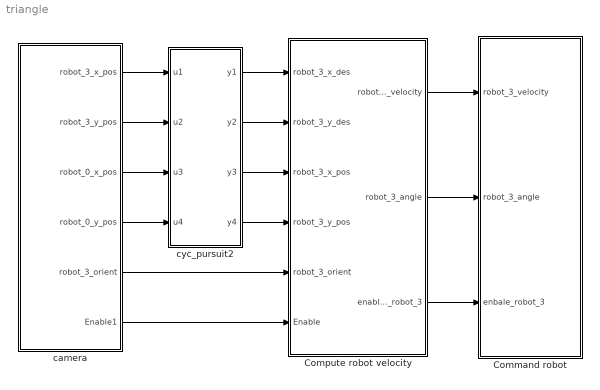
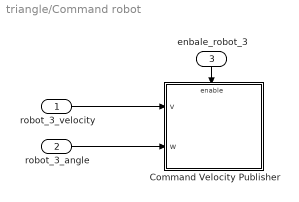
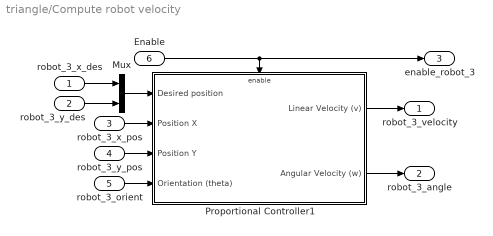
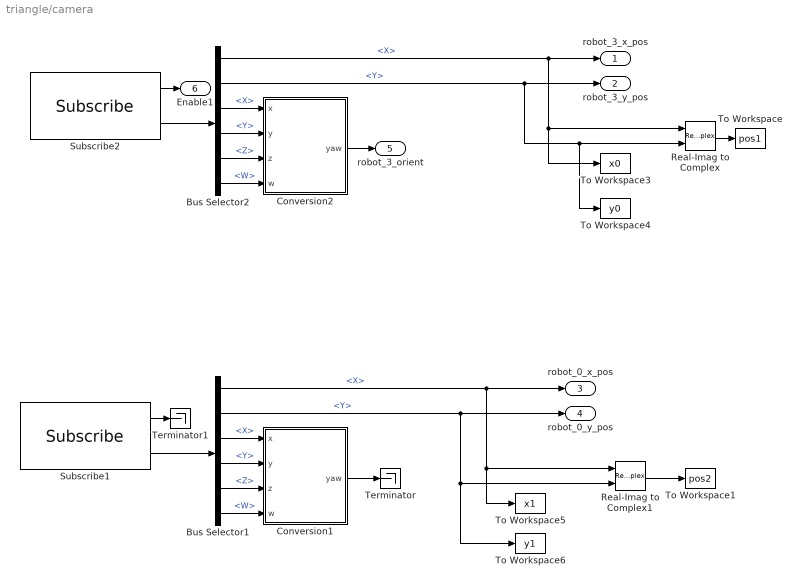
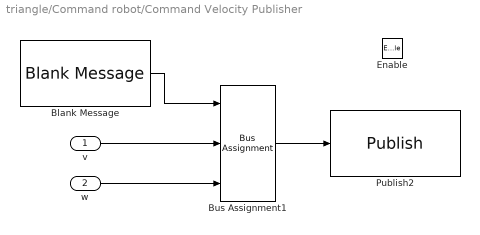
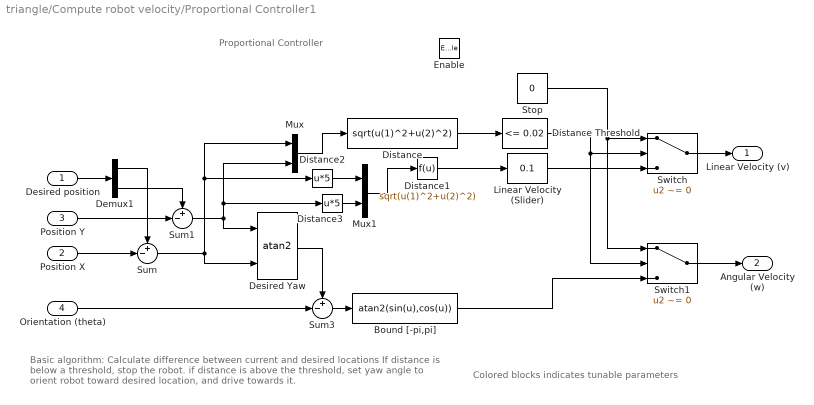
== matlab function triangle/cyc_pursuit2 ==
function [y1, y2, y3, y4] = fcn(u1, u2, u3, u4)
%#codegen

y1 = ((1-0.2)*u1+(u3*0.2)+(2*0.2));
y2 = ((1-0.2)*u2+(0.2*u4)-(0*0.2));
y3=u1;
y4=u2;




%         y1 = ((1-0.2)*u1+(u3*0.2)+(1.5451*0.2));
%         y2 = ((1-0.2)*u2+(0.2*u4)+(4.7553*0.2));
%         y3 = ((1-0.2)*u3+(u5*0.2)-(4.0451*0.2));
%         y4 = ((1-0.2)*u4+(u6*0.2)+(2.9389*0.2));
%         y5 = ((1-0.2)*u5+(u7*0.2)-(4.0451*0.2));
%         y6 = ((1-0.2)*u6+(u8*0.2)-(2.9389*0.2));
%         y7 = ((1-0.2)*u7+(u9*0.2)+(1.5451*0.2));
%         y8 = ((1-0.2)*u8+(u10*0.2)-(4.7553*0.2));
%         y9 = ((1-0.2)*u9+(u1*0.2)+(5*0.2));
%         y10 = ((1-0.2)*u10+(u2*0.2)+(0*0.2));

== matlab function triangle/camera/Conversion1 ==
function yaw  = quat2eul(x,y,z,w)
%#codegen

% Convert the quaternion to a yaw angle (zyx euler angle)
eul = quat2eul([w,x,y,z]);
yaw = eul(1);

end

== matlab function triangle/camera/Conversion2 ==
function yaw  = quat2eul(x,y,z,w)
%#codegen

% Convert the quaternion to a yaw angle (zyx euler angle)
eul = quat2eul([w,x,y,z]);
yaw = eul(1);

end

//
// Academic License - for use in teaching, academic research, and meeting
// course requirements at degree granting institutions only.  Not for
// government, commercial, or other organizational use.
//
// File: triangle.cpp
//
// Code generated for Simulink model 'triangle'.
//
// Model version                  : 1.229
// Simulink Coder version         : 8.11 (R2016b) 25-Aug-2016
// C/C++ source code generated on : Wed Jan  4 17:55:04 2017
//
// Target selection: ert.tlc
// Embedded hardware selection: Generic->Unspecified (assume 32-bit Generic)
// Code generation objectives: Unspecified
// Validation result: Not run
//
#include "triangle.h"
#include "triangle_private.h"
#define triangle_MessageQueueLen       (105)
#define triangle_MessageQueueLen_o     (1)

real_T rt_atan2d_snf(real_T u0, real_T u1)
{
  real_T y;
  int32_T u0_0;
  int32_T u1_0;
  if (rtIsNaN(u0) || rtIsNaN(u1)) {
    y = (rtNaN);
  } else if (rtIsInf(u0) && rtIsInf(u1)) {
    if (u0 > 0.0) {
      u0_0 = 1;
    } else {
      u0_0 = -1;
    }

    if (u1 > 0.0) {
      u1_0 = 1;
    } else {
      u1_0 = -1;
    }

    y = atan2((real_T)u0_0, (real_T)u1_0);
  } else if (u1 == 0.0) {
    if (u0 > 0.0) {
      y = RT_PI / 2.0;
    } else if (u0 < 0.0) {
      y = -(RT_PI / 2.0);
    } else {
      y = 0.0;
    }
  } else {
    y = atan2(u0, u1);
  }

  return y;
}

//
// Output and update for atomic system:
//    '<S3>/Conversion1'
//    '<S3>/Conversion2'
//
void triangle_Conversion1(real_T rtu_x, real_T rtu_y, real_T rtu_z, real_T rtu_w,
  B_Conversion1_triangle_T *localB)
{
  real_T b_y;
  real_T q_idx_0;
  real_T q_idx_1;
  real_T q_idx_2;

  // MATLAB Function 'camera/Conversion1': '<S11>:1'
  //  Convert the quaternion to a yaw angle (zyx euler angle)
  // '<S11>:1:5'
  b_y = 1.0 / sqrt(((rtu_w * rtu_w + rtu_x * rtu_x) + rtu_y * rtu_y) + rtu_z *
                   rtu_z);
  q_idx_0 = rtu_w * b_y;
  q_idx_1 = rtu_x * b_y;
  q_idx_2 = rtu_y * b_y;
  b_y *= rtu_z;

  // '<S11>:1:6'
  localB->yaw = rt_atan2d_snf((q_idx_1 * q_idx_2 + q_idx_0 * b_y) * 2.0,
    ((q_idx_0 * q_idx_0 + q_idx_1 * q_idx_1) - q_idx_2 * q_idx_2) - b_y * b_y);
}

real_T rt_powd_snf(real_T u0, real_T u1)
{
  real_T y;
  real_T tmp;
  real_T tmp_0;
  if (rtIsNaN(u0) || rtIsNaN(u1)) {
    y = (rtNaN);
  } else {
    tmp = fabs(u0);
    tmp_0 = fabs(u1);
    if (rtIsInf(u1)) {
      if (tmp == 1.0) {
        y = (rtNaN);
      } else if (tmp > 1.0) {
        if (u1 > 0.0) {
          y = (rtInf);
        } else {
          y = 0.0;
        }
      } else if (u1 > 0.0) {
        y = 0.0;
      } else {
        y = (rtInf);
      }
    } else if (tmp_0 == 0.0) {
      y = 1.0;
    } else if (tmp_0 == 1.0) {
      if (u1 > 0.0) {
        y = u0;
      } else {
        y = 1.0 / u0;
      }
    } else if (u1 == 2.0) {
      y = u0 * u0;
    } else if ((u1 == 0.5) && (u0 >= 0.0)) {
      y = sqrt(u0);
    } else if ((u0 < 0.0) && (u1 > floor(u1))) {
      y = (rtNaN);
    } else {
      y = pow(u0, u1);
    }
  }

  return y;
}

// Model step function
void Example3ModelClass::step()
{
  boolean_T varargout_1;
  boolean_T rtb_Compare;

  // Outputs for Atomic SubSystem: '<S3>/Subscribe2'
  // Start for MATLABSystem: '<S14>/SourceBlock' incorporates:
  //   Inport: '<S16>/In1'
  //   MATLABSystem: '<S14>/SourceBlock'

  rtb_Compare = Sub_triangle_949.getLatestMessage(&triangle_B.varargout_2);

  // Outputs for Enabled SubSystem: '<S14>/Enabled Subsystem' incorporates:
  //   EnablePort: '<S16>/Enable'

  if (rtb_Compare) {
    triangle_B.In1 = triangle_B.varargout_2;
  }

  // End of Outputs for SubSystem: '<S14>/Enabled Subsystem'
  // End of Outputs for SubSystem: '<S3>/Subscribe2'

  // Outputs for Atomic SubSystem: '<S3>/Subscribe1'
  // Start for MATLABSystem: '<S13>/SourceBlock' incorporates:
  //   Inport: '<S15>/In1'
  //   MATLABSystem: '<S13>/SourceBlock'

  varargout_1 = Sub_triangle_948.getLatestMessage(&triangle_B.varargout_2);

  // Outputs for Enabled SubSystem: '<S13>/Enabled Subsystem' incorporates:
  //   EnablePort: '<S15>/Enable'

  if (varargout_1) {
    triangle_B.In1_m = triangle_B.varargout_2;
  }

  // End of Start for MATLABSystem: '<S13>/SourceBlock'
  // End of Outputs for SubSystem: '<S13>/Enabled Subsystem'
  // End of Outputs for SubSystem: '<S3>/Subscribe1'

  // MATLAB Function: '<S3>/Conversion2'
  // MATLAB Function 'cyc_pursuit2': '<S4>:1'
  // '<S4>:1:4'
  // '<S4>:1:5'
  // '<S4>:1:6'
  // '<S4>:1:7'
  //          y1 = ((1-0.2)*u1+(u3*0.2)+(1.5451*0.2));
  //          y2 = ((1-0.2)*u2+(0.2*u4)+(4.7553*0.2));
  //          y3 = ((1-0.2)*u3+(u5*0.2)-(4.0451*0.2));
  //          y4 = ((1-0.2)*u4+(u6*0.2)+(2.9389*0.2));
  //          y5 = ((1-0.2)*u5+(u7*0.2)-(4.0451*0.2));
  //          y6 = ((1-0.2)*u6+(u8*0.2)-(2.9389*0.2));
  //          y7 = ((1-0.2)*u7+(u9*0.2)+(1.5451*0.2));
  //          y8 = ((1-0.2)*u8+(u10*0.2)-(4.7553*0.2));
  //          y9 = ((1-0.2)*u9+(u1*0.2)+(5*0.2));
  //          y10 = ((1-0.2)*u10+(u2*0.2)+(0*0.2));
  triangle_Conversion1(triangle_B.In1.Pose.Orientation.X,
                       triangle_B.In1.Pose.Orientation.Y,
                       triangle_B.In1.Pose.Orientation.Z,
                       triangle_B.In1.Pose.Orientation.W,
                       &triangle_B.sf_Conversion2);

  // Outputs for Enabled SubSystem: '<S1>/Command Velocity Publisher' incorporates:
  //   EnablePort: '<S5>/Enable'

  // Outputs for Enabled SubSystem: '<S2>/Proportional Controller1' incorporates:
  //   EnablePort: '<S8>/Enable'

  // Outputs for Atomic SubSystem: '<S3>/Subscribe2'
  // Start for MATLABSystem: '<S14>/SourceBlock' incorporates:
  //   MATLABSystem: '<S14>/SourceBlock'

  if (rtb_Compare) {
    // Sum: '<S8>/Sum1' incorporates:
    //   MATLAB Function: '<Root>/cyc_pursuit2'
    //   SignalConversion: '<S3>/SigConversion_InsertedFor_Bus Selector1_at_outport_1'
    //   SignalConversion: '<S3>/SigConversion_InsertedFor_Bus Selector2_at_outport_1'

    triangle_B.Sum1 = (0.8 * triangle_B.In1.Pose.Position.Y + 0.2 *
                       triangle_B.In1_m.Pose.Position.Y) -
      triangle_B.In1.Pose.Position.Y;

    // Sum: '<S8>/Sum' incorporates:
    //   MATLAB Function: '<Root>/cyc_pursuit2'
    //   SignalConversion: '<S3>/SigConversion_InsertedFor_Bus Selector1_at_outport_0'
    //   SignalConversion: '<S3>/SigConversion_InsertedFor_Bus Selector2_at_outport_0'

    triangle_B.Sum = ((0.8 * triangle_B.In1.Pose.Position.X +
                       triangle_B.In1_m.Pose.Position.X * 0.2) + 0.4) -
      triangle_B.In1.Pose.Position.X;

    // Fcn: '<S8>/Distance'
    triangle_B.Distance1 = rt_powd_snf(triangle_B.Sum, 2.0) + rt_powd_snf
      (triangle_B.Sum1, 2.0);
    if (triangle_B.Distance1 < 0.0) {
      triangle_B.rtb_Distance1_m = -sqrt(-triangle_B.Distance1);
    } else {
      triangle_B.rtb_Distance1_m = sqrt(triangle_B.Distance1);
    }

    // End of Fcn: '<S8>/Distance'

    // Fcn: '<S8>/Distance1' incorporates:
    //   Fcn: '<S8>/Distance2'
    //   Fcn: '<S8>/Distance3'

    triangle_B.Distance1 = rt_powd_snf(triangle_B.Sum * 5.0, 2.0) + rt_powd_snf
      (triangle_B.Sum1 * 5.0, 2.0);

    // Switch: '<S8>/Switch' incorporates:
    //   Constant: '<S8>/Stop'
    //   Constant: '<S9>/Constant'
    //   Fcn: '<S8>/Bound [-pi,pi]'
    //   Fcn: '<S8>/Distance1'
    //   Gain: '<S10>/Slider Gain'
    //   RelationalOperator: '<S9>/Compare'
    //   Switch: '<S8>/Switch1'

    if (triangle_B.rtb_Distance1_m <= triangle_P.DistanceThreshold_const) {
      triangle_B.Distance1 = triangle_P.Stop_Value;
      triangle_B.Sum1 = triangle_P.Stop_Value;
    } else {
      if (triangle_B.Distance1 < 0.0) {
        // Fcn: '<S8>/Distance1'
        triangle_B.Distance1 = -sqrt(-triangle_B.Distance1);
      } else {
        // Fcn: '<S8>/Distance1'
        triangle_B.Distance1 = sqrt(triangle_B.Distance1);
      }

      triangle_B.Distance1 *= triangle_P.LinearVelocitySlider_gain;

      // Sum: '<S8>/Sum3' incorporates:
      //   Gain: '<S10>/Slider Gain'
      //   Trigonometry: '<S8>/Desired Yaw'

      triangle_B.Sum1 = rt_atan2d_snf(triangle_B.Sum1, triangle_B.Sum) -
        triangle_B.sf_Conversion2.yaw;
      triangle_B.Sum1 = rt_atan2d_snf(sin(triangle_B.Sum1), cos(triangle_B.Sum1));
    }

    // End of Switch: '<S8>/Switch'

    // BusAssignment: '<S5>/Bus Assignment1' incorporates:
    //   Constant: '<S6>/Constant'

    triangle_B.BusAssignment1 = triangle_P.Constant_Value_d0;
    triangle_B.BusAssignment1.Linear.X = triangle_B.Distance1;
    triangle_B.BusAssignment1.Angular.Z = triangle_B.Sum1;

    // Outputs for Atomic SubSystem: '<S5>/Publish2'
    // Start for MATLABSystem: '<S7>/SinkBlock' incorporates:
    //   MATLABSystem: '<S7>/SinkBlock'

    Pub_triangle_905.publish(&triangle_B.BusAssignment1);

    // End of Outputs for SubSystem: '<S5>/Publish2'
  }

  // End of Outputs for SubSystem: '<S3>/Subscribe2'
  // End of Outputs for SubSystem: '<S2>/Proportional Controller1'
  // End of Outputs for SubSystem: '<S1>/Command Velocity Publisher'

  // MATLAB Function: '<S3>/Conversion1'
  triangle_Conversion1(triangle_B.In1_m.Pose.Orientation.X,
                       triangle_B.In1_m.Pose.Orientation.Y,
                       triangle_B.In1_m.Pose.Orientation.Z,
                       triangle_B.In1_m.Pose.Orientation.W,
                       &triangle_B.sf_Conversion1);
}
